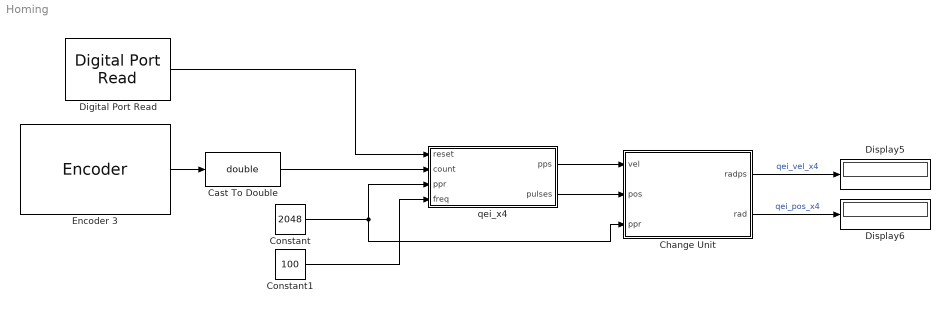
== matlab function Homing/qei_x4 ==
function [pps, pulses] = qei_x4(reset, count, ppr, freq)
enc_period = 65536 - mod(65536,ppr*4);
persistent prev_count
persistent pulses_accum
persistent diff_count

if isempty(prev_count)
    prev_count = 0;
end

if isempty(pulses_accum)
    pulses_accum = 0;
end

if isempty(diff_count)
    diff_count = 0;
end

if reset == 1
    pulses_accum = 0
end

diff_count = count - prev_count;

if diff_count > enc_period / 2
    diff_count = diff_count - enc_period;
elseif diff_count < -enc_period / 2
    diff_count = diff_count + enc_period;
end

pulses_accum = pulses_accum + diff_count;

pulses = pulses_accum;
pps = double(diff_count)*freq;

prev_count = count;
end

== matlab function Homing/Change Unit ==
function [radps, rad] = to_SI_unit(vel, pos, ppr)
    radps = (vel * 2 * pi) / ppr;

    rad = (pos * 2 * pi) / ppr;
end

/*
 * Academic License - for use in teaching, academic research, and meeting
 * course requirements at degree granting institutions only.  Not for
 * government, commercial, or other organizational use.
 *
 * File: Homing.c
 *
 * Code generated for Simulink model 'Homing'.
 *
 * Model version                  : 1.57
 * Simulink Coder version         : 24.2 (R2024b) 21-Jun-2024
 * C/C++ source code generated on : Thu Oct 17 03:21:10 2024
 *
 * Target selection: ert.tlc
 * Embedded hardware selection: ARM Compatible->ARM Cortex-M
 * Code generation objectives: Unspecified
 * Validation result: Not run
 */

#include "Homing.h"
#include "Homing_types.h"
#include "rtwtypes.h"
#include "stm_timer_ll.h"
#include "Homing_private.h"

/* Block signals (default storage) */
B_Homing_T Homing_B;

/* Block states (default storage) */
DW_Homing_T Homing_DW;

/* Real-time model */
static RT_MODEL_Homing_T Homing_M_;
RT_MODEL_Homing_T *const Homing_M = &Homing_M_;

/* Forward declaration for local functions */
static void Homing_SystemCore_setup(stm32cube_blocks_EncoderBlock_T *obj);
static void Homing_SystemCore_setup(stm32cube_blocks_EncoderBlock_T *obj)
{
  uint8_T ChannelInfo;
  TIM_Type_T b;
  boolean_T isSlaveModeTriggerEnabled;

  /* Start for MATLABSystem: '<Root>/Encoder 3' */
  obj->isInitialized = 1;
  b.PeripheralPtr = TIM3;
  b.isCenterAlignedMode = false;

  /* Start for MATLABSystem: '<Root>/Encoder 3' */
  b.repetitionCounter = 0U;
  obj->TimerHandle = Timer_Handle_Init(&b);
  enableTimerInterrupts(obj->TimerHandle, 0);
  ChannelInfo = ENABLE_CH;

  /* Start for MATLABSystem: '<Root>/Encoder 3' */
  enableTimerChannel1(obj->TimerHandle, ChannelInfo);
  enableTimerChannel2(obj->TimerHandle, ChannelInfo);
  isSlaveModeTriggerEnabled = isSlaveTriggerModeEnabled(obj->TimerHandle);
  if (!isSlaveModeTriggerEnabled) {
    /* Start for MATLABSystem: '<Root>/Encoder 3' */
    enableCounter(obj->TimerHandle, false);
  }

  obj->isSetupComplete = true;
}

/* Model step function */
void Homing_step(void)
{
  real_T diff_count;
  uint32_T pinReadLoc;
  uint32_T timerCounts;

  /* MATLABSystem: '<S5>/Digital Port Read' */
  pinReadLoc = LL_GPIO_ReadInputPort(GPIOC);

  /* MATLABSystem: '<Root>/Encoder 3' */
  timerCounts = getTimerCounterValueForG4(Homing_DW.obj.TimerHandle, false, NULL);

  /* MATLAB Function: '<Root>/qei_x4' incorporates:
   *  DataTypeConversion: '<Root>/Cast To Double'
   *  MATLABSystem: '<Root>/Encoder 3'
   *  MATLABSystem: '<S5>/Digital Port Read'
   * */
  if ((pinReadLoc & 8192U) != 0U) {
    Homing_DW.pulses_accum = 0.0;
  }

  diff_count = (real_T)timerCounts - Homing_DW.prev_count;
  if (diff_count > 32768.0) {
    diff_count -= 65536.0;
  } else if (diff_count < -32768.0) {
    diff_count += 65536.0;
  }

  Homing_DW.pulses_accum += diff_count;
  Homing_DW.prev_count = timerCounts;

  /* MATLAB Function: '<Root>/Change Unit' incorporates:
   *  Constant: '<Root>/Constant'
   *  Constant: '<Root>/Constant1'
   *  MATLAB Function: '<Root>/qei_x4'
   */
  Homing_B.radps = diff_count * 100.0 * 2.0 * 3.1415926535897931 / 2048.0;
  Homing_B.rad = Homing_DW.pulses_accum * 2.0 * 3.1415926535897931 / 2048.0;

  /* Update absolute time for base rate */
  /* The "clockTick0" counts the number of times the code of this task has
   * been executed. The absolute time is the multiplication of "clockTick0"
   * and "Timing.stepSize0". Size of "clockTick0" ensures timer will not
   * overflow during the application lifespan selected.
   */
  Homing_M->Timing.taskTime0 =
    ((time_T)(++Homing_M->Timing.clockTick0)) * Homing_M->Timing.stepSize0;
}
